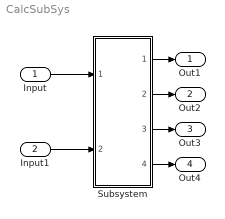
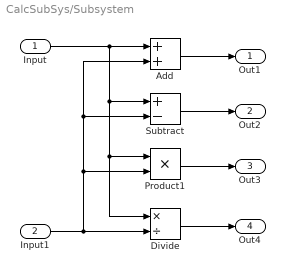
/*
 * File: CalcSubSys.c
 *
 * Code generated for Simulink model 'CalcSubSys'.
 *
 * Model version                  : 1.3
 * Simulink Coder version         : 9.3 (R2020a) 18-Nov-2019
 * C/C++ source code generated on : Thu Mar 24 15:01:40 2022
 *
 * Target selection: ert.tlc
 * Embedded hardware selection: Intel->x86-64 (Windows64)
 * Code generation objectives: Unspecified
 * Validation result: Not run
 */

#include "CalcSubSys.h"
#include "CalcSubSys_private.h"

/* External inputs (root inport signals with default storage) */
ExtU_CalcSubSys_T CalcSubSys_U;

/* External outputs (root outports fed by signals with default storage) */
ExtY_CalcSubSys_T CalcSubSys_Y;

/* Real-time model */
RT_MODEL_CalcSubSys_T CalcSubSys_M_;
RT_MODEL_CalcSubSys_T *const CalcSubSys_M = &CalcSubSys_M_;
void sMultiWordMul(const uint32_T u1[], int32_T n1, const uint32_T u2[], int32_T
                   n2, uint32_T y[], int32_T n)
{
  int32_T i;
  int32_T j;
  int32_T k;
  int32_T ni;
  uint32_T u1i;
  uint32_T yk;
  uint32_T a1;
  uint32_T a0;
  uint32_T b1;
  uint32_T w10;
  uint32_T w01;
  uint32_T cb;
  boolean_T isNegative1;
  boolean_T isNegative2;
  uint32_T cb1;
  uint32_T cb2;
  isNegative1 = ((u1[n1 - 1] & 2147483648U) != 0U);
  isNegative2 = ((u2[n2 - 1] & 2147483648U) != 0U);
  cb1 = 1U;

  /* Initialize output to zero */
  for (k = 0; k < n; k++) {
    y[k] = 0U;
  }

  for (i = 0; i < n1; i++) {
    cb = 0U;
    u1i = u1[i];
    if (isNegative1) {
      u1i = ~u1i + cb1;
      cb1 = (uint32_T)(u1i < cb1);
    }

    a1 = u1i >> 16U;
    a0 = u1i & 65535U;
    cb2 = 1U;
    ni = n - i;
    ni = n2 <= ni ? n2 : ni;
    k = i;
    for (j = 0; j < ni; j++) {
      u1i = u2[j];
      if (isNegative2) {
        u1i = ~u1i + cb2;
        cb2 = (uint32_T)(u1i < cb2);
      }

      b1 = u1i >> 16U;
      u1i &= 65535U;
      w10 = a1 * u1i;
      w01 = a0 * b1;
      yk = y[k] + cb;
      cb = (uint32_T)(yk < cb);
      u1i *= a0;
      yk += u1i;
      cb += (yk < u1i);
      u1i = w10 << 16U;
      yk += u1i;
      cb += (yk < u1i);
      u1i = w01 << 16U;
      yk += u1i;
      cb += (yk < u1i);
      y[k] = yk;
      cb += w10 >> 16U;
      cb += w01 >> 16U;
      cb += a1 * b1;
      k++;
    }

    if (k < n) {
      y[k] = cb;
    }
  }

  /* Apply sign */
  if (isNegative1 != isNegative2) {
    cb = 1U;
    for (k = 0; k < n; k++) {
      yk = ~y[k] + cb;
      y[k] = yk;
      cb = (uint32_T)(yk < cb);
    }
  }
}

int32_T div_s32_floor(int32_T numerator, int32_T denominator)
{
  int32_T quotient;
  uint32_T absNumerator;
  uint32_T absDenominator;
  uint32_T tempAbsQuotient;
  boolean_T quotientNeedsNegation;
  if (denominator == 0) {
    quotient = numerator >= 0 ? MAX_int32_T : MIN_int32_T;

    /* Divide by zero handler */
  } else {
    absNumerator = numerator < 0 ? ~(uint32_T)numerator + 1U : (uint32_T)
      numerator;
    absDenominator = denominator < 0 ? ~(uint32_T)denominator + 1U : (uint32_T)
      denominator;
    quotientNeedsNegation = ((numerator < 0) != (denominator < 0));
    tempAbsQuotient = absNumerator / absDenominator;
    if (quotientNeedsNegation) {
      absNumerator %= absDenominator;
      if (absNumerator > 0U) {
        tempAbsQuotient++;
      }
    }

    quotient = quotientNeedsNegation ? -(int32_T)tempAbsQuotient : (int32_T)
      tempAbsQuotient;
  }

  return quotient;
}

/* Model step function */
void CalcSubSys_step(void)
{
  uint32_T tmp;
  uint32_T tmp_0;

  /* Outport: '<Root>/Out1' incorporates:
   *  Inport: '<Root>/Input'
   *  Inport: '<Root>/Input1'
   *  Sum: '<S1>/Add'
   */
  CalcSubSys_Y.Out1 = CalcSubSys_U.Input + CalcSubSys_U.Input1;

  /* Outport: '<Root>/Out2' incorporates:
   *  Inport: '<Root>/Input'
   *  Inport: '<Root>/Input1'
   *  Sum: '<S1>/Subtract'
   */
  CalcSubSys_Y.Out2 = CalcSubSys_U.Input - CalcSubSys_U.Input1;

  /* Product: '<S1>/Product1' incorporates:
   *  Inport: '<Root>/Input'
   *  Inport: '<Root>/Input1'
   *  Outport: '<Root>/Out3'
   */
  tmp = (uint32_T)CalcSubSys_U.Input;
  tmp_0 = (uint32_T)CalcSubSys_U.Input1;
  sMultiWordMul(&tmp, 1, &tmp_0, 1, &CalcSubSys_Y.Out3.chunks[0U], 2);

  /* Outport: '<Root>/Out4' incorporates:
   *  Inport: '<Root>/Input'
   *  Inport: '<Root>/Input1'
   *  Product: '<S1>/Divide'
   */
  CalcSubSys_Y.Out4 = div_s32_floor(CalcSubSys_U.Input, CalcSubSys_U.Input1);
}
